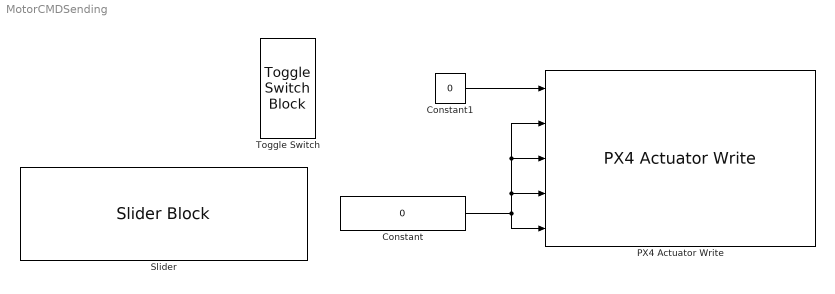
//
// Academic License - for use in teaching, academic research, and meeting
// course requirements at degree granting institutions only.  Not for
// government, commercial, or other organizational use.
//
// File: MotorCMDSending.cpp
//
// Code generated for Simulink model 'MotorCMDSending'.
//
// Model version                  : 1.2
// Simulink Coder version         : 25.1 (R2025a) 21-Nov-2024
// C/C++ source code generated on : Thu Aug 28 11:22:32 2025
//
// Target selection: ert.tlc
// Embedded hardware selection: ARM Compatible->ARM Cortex
// Code generation objectives: Unspecified
// Validation result: Not run
//
#include "MotorCMDSending.h"
#include "MotorCMDSending_types.h"
#include "rtwtypes.h"
#include "MotorCMDSending_private.h"

extern "C"
{

#include "rt_nonfinite.h"

}

// Block signals (default storage)
B_MotorCMDSending_T MotorCMDSending_B;

// Block states (default storage)
DW_MotorCMDSending_T MotorCMDSending_DW;

// Real-time model
RT_MODEL_MotorCMDSending_T MotorCMDSending_M_ = RT_MODEL_MotorCMDSending_T();
RT_MODEL_MotorCMDSending_T *const MotorCMDSending_M = &MotorCMDSending_M_;

// Forward declaration for local functions
static void MotorCMD_PX4Actuators_setupImpl(px4_internal_block_PX4Actuato_T *obj);
static void MotorCMD_PX4Actuators_setupImpl(px4_internal_block_PX4Actuato_T *obj)
{
  int32_T n;
  int32_T n_0;
  obj->ValidMotorIdx[0] = true;
  obj->ValidMotorIdx[1] = true;
  obj->ValidMotorIdx[2] = true;
  obj->ValidMotorIdx[3] = true;
  n = 0;
  for (int32_T b_k = 0; b_k < 12; b_k++) {
    // Start for MATLABSystem: '<Root>/PX4 Actuator Write'
    if (obj->ValidMotorIdx[b_k]) {
      n++;
    }
  }

  n_0 = 0;
  for (int32_T b_k = 0; b_k < 8; b_k++) {
    // Start for MATLABSystem: '<Root>/PX4 Actuator Write'
    if (obj->ValidServoIdx[b_k]) {
      n_0++;
    }
  }

  // Start for MATLABSystem: '<Root>/PX4 Actuator Write'
  obj->QSize = static_cast<uint8_T>(n + n_0);
  MW_actuators_init(obj->QSize);
}

// Model step function
void MotorCMDSending_step(void)
{
  int32_T i;
  real32_T servoValues[8];

  // MATLABSystem: '<Root>/PX4 Actuator Write' incorporates:
  //   Constant: '<Root>/Constant'
  //   Constant: '<Root>/Constant1'

  for (i = 0; i < 12; i++) {
    MotorCMDSending_B.motorValues_m[i] = (rtNaNF);
  }

  for (i = 0; i < 8; i++) {
    servoValues[i] = (rtNaNF);
  }

  MotorCMDSending_B.motorValues_m[0] = MotorCMDSending_P.Constant_Value;
  MotorCMDSending_B.motorValues_m[1] = MotorCMDSending_P.Constant_Value;
  MotorCMDSending_B.motorValues_m[2] = MotorCMDSending_P.Constant_Value;
  MotorCMDSending_B.motorValues_m[3] = MotorCMDSending_P.Constant_Value;
  MW_actuators_set(MotorCMDSending_P.Constant1_Value,
                   &MotorCMDSending_B.motorValues_m[0], &servoValues[0]);

  // End of MATLABSystem: '<Root>/PX4 Actuator Write'

  // Update absolute time for base rate
  // The "clockTick0" counts the number of times the code of this task has
  //  been executed. The absolute time is the multiplication of "clockTick0"
  //  and "Timing.stepSize0". Size of "clockTick0" ensures timer will not
  //  overflow during the application lifespan selected.

  MotorCMDSending_M->Timing.taskTime0 =
    ((time_T)(++MotorCMDSending_M->Timing.clockTick0)) *
    MotorCMDSending_M->Timing.stepSize0;
}
